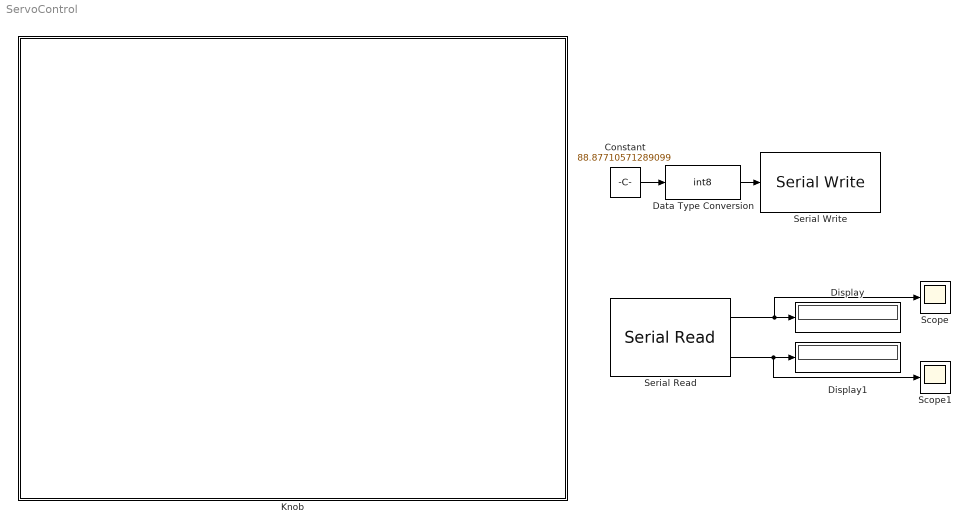
== system ServoControl/Knob ==

/*
 * Academic License - for use in teaching, academic research, and meeting
 * course requirements at degree granting institutions only.  Not for
 * government, commercial, or other organizational use.
 *
 * File: ServoControl.c
 *
 * Code generated for Simulink model 'ServoControl'.
 *
 * Model version                  : 1.11
 * Simulink Coder version         : 8.14 (R2018a) 06-Feb-2018
 * C/C++ source code generated on : Thu Mar 28 11:10:47 2019
 *
 * Target selection: ert.tlc
 * Embedded hardware selection: ARM Compatible->ARM Cortex
 * Code generation objectives: Unspecified
 * Validation result: Not run
 */

#include "ServoControl.h"
#include "ServoControl_private.h"
#include "ServoControl_dt.h"

/* Block signals (default storage) */
B_ServoControl_T ServoControl_B;

/* Block states (default storage) */
DW_ServoControl_T ServoControl_DW;

/* Real-time model */
RT_MODEL_ServoControl_T ServoControl_M_;
RT_MODEL_ServoControl_T *const ServoControl_M = &ServoControl_M_;

/* Forward declaration for local functions */
static void SystemProp_matlabCodegenSetAn_p(codertarget_raspi_internal__p_T *obj,
  boolean_T value);
static void ServoContr_SystemCore_release_p(const
  codertarget_raspi_internal__p_T *obj);
static void ServoContro_SystemCore_delete_p(const
  codertarget_raspi_internal__p_T *obj);
static void matlabCodegenHandle_matlabCod_p(codertarget_raspi_internal__p_T *obj);
static void SystemProp_matlabCodegenSetAnyP(codertarget_raspi_internal_SC_T *obj,
  boolean_T value);
static void ServoControl_SystemCore_release(const
  codertarget_raspi_internal_SC_T *obj);
static void ServoControl_SystemCore_delete(const codertarget_raspi_internal_SC_T
  *obj);
static void matlabCodegenHandle_matlabCodeg(codertarget_raspi_internal_SC_T *obj);
static void SystemProp_matlabCodegenSetAn_p(codertarget_raspi_internal__p_T *obj,
  boolean_T value)
{
  /* Start for MATLABSystem: '<Root>/Serial Write' */
  obj->matlabCodegenIsDeleted = value;
}

static void ServoContr_SystemCore_release_p(const
  codertarget_raspi_internal__p_T *obj)
{
  /* Start for MATLABSystem: '<Root>/Serial Write' */
  if ((obj->isInitialized == 1) && obj->isSetupComplete) {
    MW_SCI_Close(obj->MW_SCIHANDLE);
  }

  /* End of Start for MATLABSystem: '<Root>/Serial Write' */
}

static void ServoContro_SystemCore_delete_p(const
  codertarget_raspi_internal__p_T *obj)
{
  /* Start for MATLABSystem: '<Root>/Serial Write' */
  ServoContr_SystemCore_release_p(obj);
}

static void matlabCodegenHandle_matlabCod_p(codertarget_raspi_internal__p_T *obj)
{
  /* Start for MATLABSystem: '<Root>/Serial Write' */
  if (!obj->matlabCodegenIsDeleted) {
    SystemProp_matlabCodegenSetAn_p(obj, true);
    ServoContro_SystemCore_delete_p(obj);
  }

  /* End of Start for MATLABSystem: '<Root>/Serial Write' */
}

static void SystemProp_matlabCodegenSetAnyP(codertarget_raspi_internal_SC_T *obj,
  boolean_T value)
{
  /* Start for MATLABSystem: '<Root>/Serial Read' */
  obj->matlabCodegenIsDeleted = value;
}

static void ServoControl_SystemCore_release(const
  codertarget_raspi_internal_SC_T *obj)
{
  /* Start for MATLABSystem: '<Root>/Serial Read' */
  if ((obj->isInitialized == 1) && obj->isSetupComplete) {
    MW_SCI_Close(obj->MW_SCIHANDLE);
  }

  /* End of Start for MATLABSystem: '<Root>/Serial Read' */
}

static void ServoControl_SystemCore_delete(const codertarget_raspi_internal_SC_T
  *obj)
{
  /* Start for MATLABSystem: '<Root>/Serial Read' */
  ServoControl_SystemCore_release(obj);
}

static void matlabCodegenHandle_matlabCodeg(codertarget_raspi_internal_SC_T *obj)
{
  /* Start for MATLABSystem: '<Root>/Serial Read' */
  if (!obj->matlabCodegenIsDeleted) {
    SystemProp_matlabCodegenSetAnyP(obj, true);
    ServoControl_SystemCore_delete(obj);
  }

  /* End of Start for MATLABSystem: '<Root>/Serial Read' */
}

/* Model step function */
void ServoControl_step(void)
{
  uint8_T TxDataLocChar;
  boolean_T p;
  boolean_T p_0;
  int8_T rtb_DataTypeConversion;
  real_T tmp;

  /* DataTypeConversion: '<Root>/Data Type Conversion' incorporates:
   *  Constant: '<Root>/Constant'
   */
  tmp = floor(ServoControl_P.Constant_Value);
  if (rtIsNaN(tmp) || rtIsInf(tmp)) {
    tmp = 0.0;
  } else {
    tmp = fmod(tmp, 256.0);
  }

  rtb_DataTypeConversion = (int8_T)(tmp < 0.0 ? (int32_T)(int8_T)-(int8_T)
    (uint8_T)-tmp : (int32_T)(int8_T)(uint8_T)tmp);

  /* End of DataTypeConversion: '<Root>/Data Type Conversion' */

  /* Start for MATLABSystem: '<Root>/Serial Write' */
  memcpy((void *)&TxDataLocChar, (void *)&rtb_DataTypeConversion, (uint32_T)
         ((size_t)1 * sizeof(uint8_T)));
  MW_SCI_Transmit(ServoControl_DW.obj_p.MW_SCIHANDLE, &TxDataLocChar, 1U);

  /* Start for MATLABSystem: '<Root>/Serial Read' */
  p = false;
  p_0 = true;
  if (!(ServoControl_DW.obj.SampleTime == ServoControl_P.SerialRead_SampleTime))
  {
    p_0 = false;
  }

  if (p_0) {
    p = true;
  }

  if (!p) {
    ServoControl_DW.obj.SampleTime = ServoControl_P.SerialRead_SampleTime;
  }

  /* MATLABSystem: '<Root>/Serial Read' */
  ServoControl_B.SerialRead_o2 = MW_SCI_Receive(ServoControl_DW.obj.MW_SCIHANDLE,
    &TxDataLocChar, 1U);

  /* Start for MATLABSystem: '<Root>/Serial Read' */
  memcpy((void *)&ServoControl_B.SerialRead_o1, (void *)&TxDataLocChar,
         (uint32_T)((size_t)1 * sizeof(uint8_T)));

  /* External mode */
  rtExtModeUploadCheckTrigger(1);

  {                                    /* Sample time: [0.1s, 0.0s] */
    rtExtModeUpload(0, ServoControl_M->Timing.taskTime0);
  }

  /* signal main to stop simulation */
  {                                    /* Sample time: [0.1s, 0.0s] */
    if ((rtmGetTFinal(ServoControl_M)!=-1) &&
        !((rtmGetTFinal(ServoControl_M)-ServoControl_M->Timing.taskTime0) >
          ServoControl_M->Timing.taskTime0 * (DBL_EPSILON))) {
      rtmSetErrorStatus(ServoControl_M, "Simulation finished");
    }

    if (rtmGetStopRequested(ServoControl_M)) {
      rtmSetErrorStatus(ServoControl_M, "Simulation finished");
    }
  }

  /* Update absolute time for base rate */
  /* The "clockTick0" counts the number of times the code of this task has
   * been executed. The absolute time is the multiplication of "clockTick0"
   * and "Timing.stepSize0". Size of "clockTick0" ensures timer will not
   * overflow during the application lifespan selected.
   */
  ServoControl_M->Timing.taskTime0 =
    (++ServoControl_M->Timing.clockTick0) * ServoControl_M->Timing.stepSize0;
}
